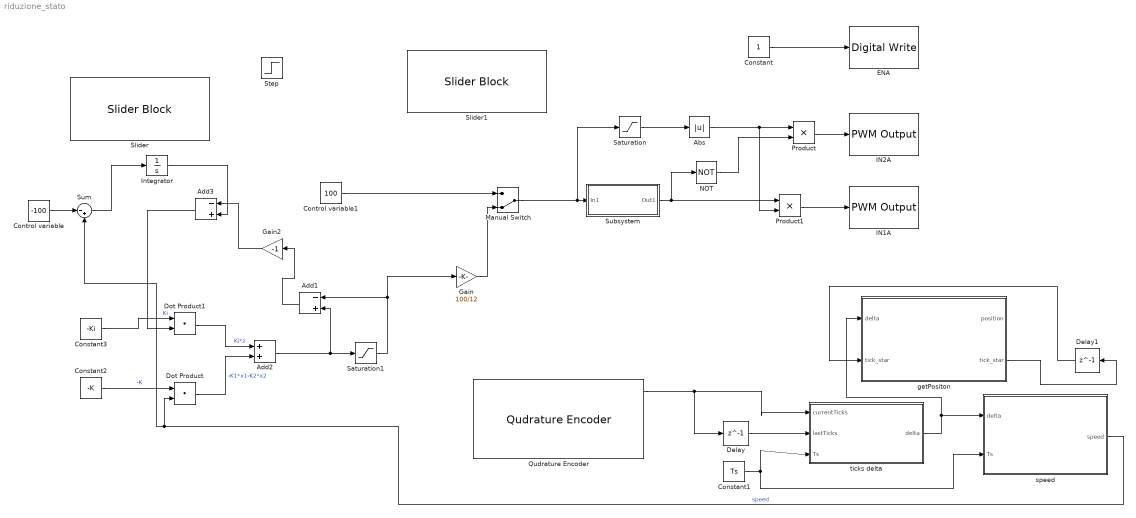
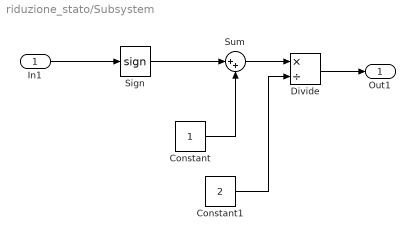
== matlab function riduzione_stato/ticks delta ==
function delta = getTicksData(currentTicks, lastTicks, Ts)

currentTicks = double(currentTicks);
lastTicks = double(lastTicks);

if abs(currentTicks - lastTicks) <= ceil(12600*Ts)
    delta = currentTicks - lastTicks;
else
    if lastTicks > currentTicks
        delta = currentTicks + 2^16-1 - lastTicks;
    else
        delta = currentTicks - 2^16+1 - lastTicks;
    end
end

end

== matlab function riduzione_stato/getPositon ==
function [position, tick_star] = getPosition(delta, tick_star)

tick_star = double(tick_star + delta);

completeTheta = 2 * pi * tick_star /(8400);

position = sign(completeTheta) * mod(abs(completeTheta), 2*pi);

end

== matlab function riduzione_stato/speed ==
function speed = getSpeedByDelta(delta, Ts)

speed = delta * 60 / (8400*Ts);

end

/*
 * riduzione_stato.c
 *
 * Academic License - for use in teaching, academic research, and meeting
 * course requirements at degree granting institutions only.  Not for
 * government, commercial, or other organizational use.
 *
 * Code generation for model "riduzione_stato".
 *
 * Model version              : 2.29
 * Simulink Coder version : 23.2 (R2023b) 01-Aug-2023
 * C source code generated on : Tue May 28 21:00:47 2024
 *
 * Target selection: ert.tlc
 * Note: GRT includes extra infrastructure and instrumentation for prototyping
 * Embedded hardware selection: ARM Compatible->ARM Cortex
 * Code generation objectives: Unspecified
 * Validation result: Not run
 */

#include "riduzione_stato.h"
#include "rtwtypes.h"
#include <math.h>
#include "rt_nonfinite.h"
#include "riduzione_stato_private.h"
#include <string.h>

/* Named constants for MATLAB Function: '<Root>/getPositon' */
#define riduzione_stato_CALL_EVENT     (-1)

/* Block signals (default storage) */
B_riduzione_stato_T riduzione_stato_B;

/* Continuous states */
X_riduzione_stato_T riduzione_stato_X;

/* Disabled State Vector */
XDis_riduzione_stato_T riduzione_stato_XDis;

/* Block states (default storage) */
DW_riduzione_stato_T riduzione_stato_DW;

/* Real-time model */
static RT_MODEL_riduzione_stato_T riduzione_stato_M_;
RT_MODEL_riduzione_stato_T *const riduzione_stato_M = &riduzione_stato_M_;

/*
 * This function updates continuous states using the ODE3 fixed-step
 * solver algorithm
 */
static void rt_ertODEUpdateContinuousStates(RTWSolverInfo *si )
{
  /* Solver Matrices */
  static const real_T rt_ODE3_A[3] = {
    1.0/2.0, 3.0/4.0, 1.0
  };

  static const real_T rt_ODE3_B[3][3] = {
    { 1.0/2.0, 0.0, 0.0 },

    { 0.0, 3.0/4.0, 0.0 },

    { 2.0/9.0, 1.0/3.0, 4.0/9.0 }
  };

  time_T t = rtsiGetT(si);
  time_T tnew = rtsiGetSolverStopTime(si);
  time_T h = rtsiGetStepSize(si);
  real_T *x = rtsiGetContStates(si);
  ODE3_IntgData *id = (ODE3_IntgData *)rtsiGetSolverData(si);
  real_T *y = id->y;
  real_T *f0 = id->f[0];
  real_T *f1 = id->f[1];
  real_T *f2 = id->f[2];
  real_T hB[3];
  int_T i;
  int_T nXc = 1;
  rtsiSetSimTimeStep(si,MINOR_TIME_STEP);

  /* Save the state values at time t in y, we'll use x as ynew. */
  (void) memcpy(y, x,
                (uint_T)nXc*sizeof(real_T));

  /* Assumes that rtsiSetT and ModelOutputs are up-to-date */
  /* f0 = f(t,y) */
  rtsiSetdX(si, f0);
  riduzione_stato_derivatives();

  /* f(:,2) = feval(odefile, t + hA(1), y + f*hB(:,1), args(:)(*)); */
  hB[0] = h * rt_ODE3_B[0][0];
  for (i = 0; i < nXc; i++) {
    x[i] = y[i] + (f0[i]*hB[0]);
  }

  rtsiSetT(si, t + h*rt_ODE3_A[0]);
  rtsiSetdX(si, f1);
  riduzione_stato_step();
  riduzione_stato_derivatives();

  /* f(:,3) = feval(odefile, t + hA(2), y + f*hB(:,2), args(:)(*)); */
  for (i = 0; i <= 1; i++) {
    hB[i] = h * rt_ODE3_B[1][i];
  }

  for (i = 0; i < nXc; i++) {
    x[i] = y[i] + (f0[i]*hB[0] + f1[i]*hB[1]);
  }

  rtsiSetT(si, t + h*rt_ODE3_A[1]);
  rtsiSetdX(si, f2);
  riduzione_stato_step();
  riduzione_stato_derivatives();

  /* tnew = t + hA(3);
     ynew = y + f*hB(:,3); */
  for (i = 0; i <= 2; i++) {
    hB[i] = h * rt_ODE3_B[2][i];
  }

  for (i = 0; i < nXc; i++) {
    x[i] = y[i] + (f0[i]*hB[0] + f1[i]*hB[1] + f2[i]*hB[2]);
  }

  rtsiSetT(si, tnew);
  rtsiSetSimTimeStep(si,MAJOR_TIME_STEP);
}

/* Model step function */
void riduzione_stato_step(void)
{
  real_T rtb_Abs;
  real_T rtb_Add2;
  real_T rtb_Divide;
  real_T rtb_Saturation1;
  uint16_T b_varargout_2;
  boolean_T rEQ0;
  if (rtmIsMajorTimeStep(riduzione_stato_M)) {
    /* set solver stop time */
    if (!(riduzione_stato_M->Timing.clockTick0+1)) {
      rtsiSetSolverStopTime(&riduzione_stato_M->solverInfo,
                            ((riduzione_stato_M->Timing.clockTickH0 + 1) *
        riduzione_stato_M->Timing.stepSize0 * 4294967296.0));
    } else {
      rtsiSetSolverStopTime(&riduzione_stato_M->solverInfo,
                            ((riduzione_stato_M->Timing.clockTick0 + 1) *
        riduzione_stato_M->Timing.stepSize0 +
        riduzione_stato_M->Timing.clockTickH0 *
        riduzione_stato_M->Timing.stepSize0 * 4294967296.0));
    }
  }                                    /* end MajorTimeStep */

  /* Update absolute time of base rate at minor time step */
  if (rtmIsMinorTimeStep(riduzione_stato_M)) {
    riduzione_stato_M->Timing.t[0] = rtsiGetT(&riduzione_stato_M->solverInfo);
  }

  if (rtmIsMajorTimeStep(riduzione_stato_M)) {
    /* MATLABSystem: '<Root>/Qudrature Encoder' */
    if (riduzione_stato_DW.obj.SampleTime != riduzione_stato_P.Ts) {
      riduzione_stato_DW.obj.SampleTime = riduzione_stato_P.Ts;
    }

    /* MATLABSystem: '<Root>/Qudrature Encoder' */
    /* 		%% Define output properties */
    /*  Call C-function implementing device output */
    riduzione_stato_B.QudratureEncoder_o1 = getEncoderCount();

    /* MATLABSystem: '<Root>/Qudrature Encoder' */
    getIndexCount(&b_varargout_2);

    /* MATLAB Function: '<Root>/ticks delta' incorporates:
     *  Constant: '<Root>/Constant1'
     *  Delay: '<Root>/Delay'
     */
    riduzione_stato_DW.sfEvent = riduzione_stato_CALL_EVENT;
    riduzione_stato_B.delta = riduzione_stato_B.QudratureEncoder_o1 -
      riduzione_stato_DW.Delay_DSTATE;
    if (!(fabs(riduzione_stato_B.delta) <= ceil(12600.0 * riduzione_stato_P.Ts)))
    {
      if (riduzione_stato_DW.Delay_DSTATE >
          riduzione_stato_B.QudratureEncoder_o1) {
        riduzione_stato_B.delta += 65535.0;
      } else {
        riduzione_stato_B.delta -= 65535.0;
      }
    }

    /* End of MATLAB Function: '<Root>/ticks delta' */

    /* MATLAB Function: '<Root>/speed' incorporates:
     *  Constant: '<Root>/Constant1'
     */
    riduzione_stato_DW.sfEvent_h = riduzione_stato_CALL_EVENT;
    riduzione_stato_B.speed = riduzione_stato_B.delta * 60.0 / (8400.0 *
      riduzione_stato_P.Ts);

    /* DotProduct: '<Root>/Dot Product' incorporates:
     *  Constant: '<Root>/Constant2'
     */
    riduzione_stato_B.K1x1K2x2 = -riduzione_stato_P.K * riduzione_stato_B.speed;
  }

  /* Sum: '<Root>/Add2' incorporates:
   *  Constant: '<Root>/Constant3'
   *  DotProduct: '<Root>/Dot Product1'
   *  Integrator: '<Root>/Integrator'
   */
  rtb_Add2 = -riduzione_stato_P.Ki * riduzione_stato_X.Integrator_CSTATE +
    riduzione_stato_B.K1x1K2x2;

  /* Saturate: '<Root>/Saturation1' */
  if (rtb_Add2 > riduzione_stato_P.Saturation1_UpperSat) {
    rtb_Saturation1 = riduzione_stato_P.Saturation1_UpperSat;
  } else if (rtb_Add2 < riduzione_stato_P.Saturation1_LowerSat) {
    rtb_Saturation1 = riduzione_stato_P.Saturation1_LowerSat;
  } else {
    rtb_Saturation1 = rtb_Add2;
  }

  /* End of Saturate: '<Root>/Saturation1' */

  /* ManualSwitch: '<Root>/Manual Switch' incorporates:
   *  Constant: '<Root>/Control variable1'
   *  Gain: '<Root>/Gain'
   */
  if (riduzione_stato_P.ManualSwitch_CurrentSetting == 1) {
    rtb_Abs = riduzione_stato_P.Controlvariable1_Value;
  } else {
    rtb_Abs = riduzione_stato_P.Gain_Gain * rtb_Saturation1;
  }

  /* End of ManualSwitch: '<Root>/Manual Switch' */

  /* Signum: '<S1>/Sign' */
  if (rtIsNaN(rtb_Abs)) {
    rtb_Divide = (rtNaN);
  } else if (rtb_Abs < 0.0) {
    rtb_Divide = -1.0;
  } else {
    rtb_Divide = (rtb_Abs > 0.0);
  }

  /* Product: '<S1>/Divide' incorporates:
   *  Constant: '<S1>/Constant'
   *  Constant: '<S1>/Constant1'
   *  Signum: '<S1>/Sign'
   *  Sum: '<S1>/Sum'
   */
  rtb_Divide = (rtb_Divide + riduzione_stato_P.Constant_Value) /
    riduzione_stato_P.Constant1_Value;

  /* Saturate: '<Root>/Saturation' */
  if (rtb_Abs > riduzione_stato_P.Saturation_UpperSat) {
    rtb_Abs = riduzione_stato_P.Saturation_UpperSat;
  } else if (rtb_Abs < riduzione_stato_P.Saturation_LowerSat) {
    rtb_Abs = riduzione_stato_P.Saturation_LowerSat;
  }

  /* Abs: '<Root>/Abs' incorporates:
   *  Saturate: '<Root>/Saturation'
   */
  rtb_Abs = fabs(rtb_Abs);

  /* MATLABSystem: '<Root>/IN1A' incorporates:
   *  Product: '<Root>/Product1'
   */
  MW_PWM_SetDutyCycle(riduzione_stato_DW.obj_b.MW_PWM_HANDLE, rtb_Divide *
                      rtb_Abs);

  /* MATLABSystem: '<Root>/IN2A' incorporates:
   *  Logic: '<Root>/NOT'
   *  Product: '<Root>/Product'
   */
  MW_PWM_SetDutyCycle(riduzione_stato_DW.obj_j.MW_PWM_HANDLE, rtb_Abs * (real_T)
                      !(rtb_Divide != 0.0));
  if (rtmIsMajorTimeStep(riduzione_stato_M)) {
    /* Sum: '<Root>/Sum' incorporates:
     *  Constant: '<Root>/Control variable'
     */
    riduzione_stato_B.Sum = riduzione_stato_B.speed -
      riduzione_stato_P.Controlvariable_Value;
  }

  /* Sum: '<Root>/Add3' incorporates:
   *  Gain: '<Root>/Gain2'
   *  Sum: '<Root>/Add1'
   */
  riduzione_stato_B.Add3 = riduzione_stato_B.Sum - (rtb_Add2 - rtb_Saturation1) *
    riduzione_stato_P.Gain2_Gain;

  /* RateTransition generated from: '<Root>/speed' */
  if (rtmIsMajorTimeStep(riduzione_stato_M)) {
    /* RateTransition generated from: '<Root>/speed' */
    riduzione_stato_B.HiddenRateTransitionForToWks_In = riduzione_stato_B.speed;

    /* Delay: '<Root>/Delay1' */
    riduzione_stato_B.tick_star = riduzione_stato_DW.Delay1_DSTATE;

    /* MATLAB Function: '<Root>/getPositon' */
    riduzione_stato_DW.sfEvent_hu = riduzione_stato_CALL_EVENT;
    riduzione_stato_B.tick_star += riduzione_stato_B.delta;
    rtb_Divide = 6.2831853071795862 * riduzione_stato_B.tick_star / 8400.0;
    rtb_Saturation1 = fabs(rtb_Divide);
    if (rtIsNaN(rtb_Saturation1) || rtIsInf(rtb_Saturation1)) {
      rtb_Add2 = (rtNaN);
    } else if (rtb_Saturation1 == 0.0) {
      rtb_Add2 = 0.0;
    } else {
      rtb_Add2 = fmod(rtb_Saturation1, 6.2831853071795862);
      rEQ0 = (rtb_Add2 == 0.0);
      if (!rEQ0) {
        rtb_Saturation1 /= 6.2831853071795862;
        rEQ0 = !(fabs(rtb_Saturation1 - floor(rtb_Saturation1 + 0.5)) >
                 2.2204460492503131E-16 * rtb_Saturation1);
      }

      if (rEQ0) {
        rtb_Add2 = 0.0;
      }
    }

    /* RateTransition generated from: '<Root>/getPositon' */
    if (rtmIsMajorTimeStep(riduzione_stato_M)) {
      /* MATLAB Function: '<Root>/getPositon' */
      if (rtIsNaN(rtb_Divide)) {
        rtb_Divide = (rtNaN);
      } else if (rtb_Divide < 0.0) {
        rtb_Divide = -1.0;
      } else {
        rtb_Divide = (rtb_Divide > 0.0);
      }

      /* RateTransition generated from: '<Root>/getPositon' incorporates:
       *  MATLAB Function: '<Root>/getPositon'
       */
      riduzione_stato_B.HiddenRateTransitionForToWks__k = rtb_Divide * rtb_Add2;
    }

    /* End of RateTransition generated from: '<Root>/getPositon' */
    /* RateTransition generated from: '<Root>/Qudrature Encoder' */
    if (rtmIsMajorTimeStep(riduzione_stato_M)) {
      /* RateTransition generated from: '<Root>/Qudrature Encoder' */
      riduzione_stato_B.HiddenRateTransitionForToWks__c =
        riduzione_stato_B.QudratureEncoder_o1;
    }

    /* End of RateTransition generated from: '<Root>/Qudrature Encoder' */
    /* MATLABSystem: '<Root>/ENA' incorporates:
     *  Constant: '<Root>/Constant'
     */
    MW_digitalIO_write(riduzione_stato_DW.obj_p.MW_DIGITALIO_HANDLE,
                       riduzione_stato_P.Constant_Value_a != 0.0);
  }

  /* End of RateTransition generated from: '<Root>/speed' */
  if (rtmIsMajorTimeStep(riduzione_stato_M)) {
    if (rtmIsMajorTimeStep(riduzione_stato_M)) {
      /* Update for Delay: '<Root>/Delay' */
      riduzione_stato_DW.Delay_DSTATE = riduzione_stato_B.QudratureEncoder_o1;

      /* Update for Delay: '<Root>/Delay1' */
      riduzione_stato_DW.Delay1_DSTATE = riduzione_stato_B.tick_star;
    }

    {                                  /* Sample time: [0.0s, 0.0s] */
      extmodeErrorCode_T errorCode = EXTMODE_SUCCESS;
      extmodeSimulationTime_T currentTime = (extmodeSimulationTime_T)
        riduzione_stato_M->Timing.t[0];

      /* Trigger External Mode event */
      errorCode = extmodeEvent(0,currentTime);
      if (errorCode != EXTMODE_SUCCESS) {
        /* Code to handle External Mode event errors
           may be added here */
      }
    }

    if (rtmIsMajorTimeStep(riduzione_stato_M)) {/* Sample time: [0.005s, 0.0s] */
      extmodeErrorCode_T errorCode = EXTMODE_SUCCESS;
      extmodeSimulationTime_T currentTime = (extmodeSimulationTime_T)
        (((riduzione_stato_M->Timing.clockTick1+
           riduzione_stato_M->Timing.clockTickH1* 4294967296.0)) * 0.005);

      /* Trigger External Mode event */
      errorCode = extmodeEvent(1,currentTime);
      if (errorCode != EXTMODE_SUCCESS) {
        /* Code to handle External Mode event errors
           may be added here */
      }
    }
  }                                    /* end MajorTimeStep */

  if (rtmIsMajorTimeStep(riduzione_stato_M)) {
    rt_ertODEUpdateContinuousStates(&riduzione_stato_M->solverInfo);

    /* Update absolute time for base rate */
    /* The "clockTick0" counts the number of times the code of this task has
     * been executed. The absolute time is the multiplication of "clockTick0"
     * and "Timing.stepSize0". Size of "clockTick0" ensures timer will not
     * overflow during the application lifespan selected.
     * Timer of this task consists of two 32 bit unsigned integers.
     * The two integers represent the low bits Timing.clockTick0 and the high bits
     * Timing.clockTickH0. When the low bit overflows to 0, the high bits increment.
     */
    if (!(++riduzione_stato_M->Timing.clockTick0)) {
      ++riduzione_stato_M->Timing.clockTickH0;
    }

    riduzione_stato_M->Timing.t[0] = rtsiGetSolverStopTime
      (&riduzione_stato_M->solverInfo);

    {
      /* Update absolute timer for sample time: [0.005s, 0.0s] */
      /* The "clockTick1" counts the number of times the code of this task has
       * been executed. The resolution of this integer timer is 0.005, which is the step size
       * of the task. Size of "clockTick1" ensures timer will not overflow during the
       * application lifespan selected.
       * Timer of this task consists of two 32 bit unsigned integers.
       * The two integers represent the low bits Timing.clockTick1 and the high bits
       * Timing.clockTickH1. When the low bit overflows to 0, the high bits increment.
       */
      riduzione_stato_M->Timing.clockTick1++;
      if (!riduzione_stato_M->Timing.clockTick1) {
        riduzione_stato_M->Timing.clockTickH1++;
      }
    }
  }                                    /* end MajorTimeStep */
}
